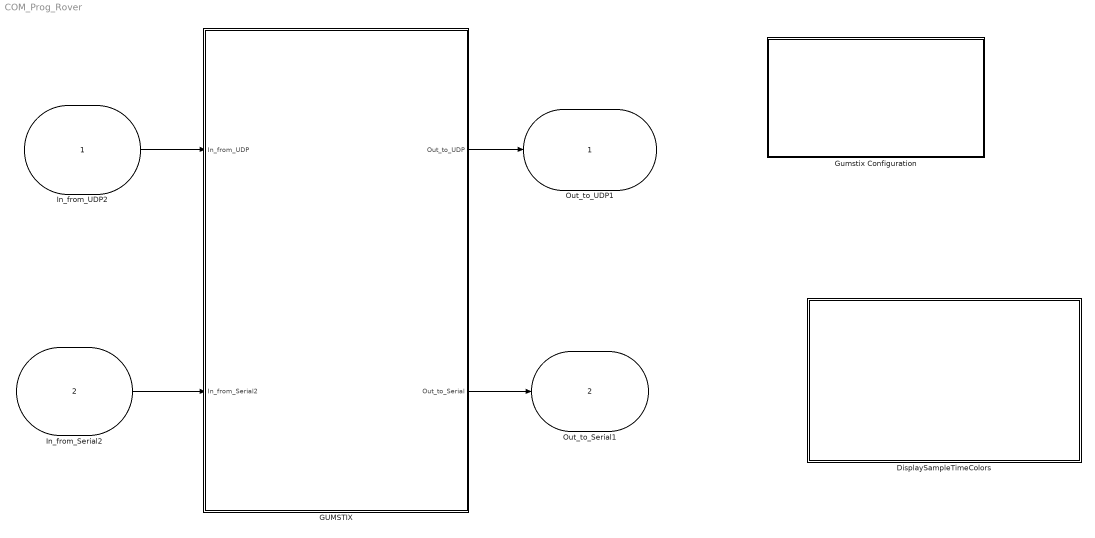
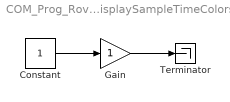
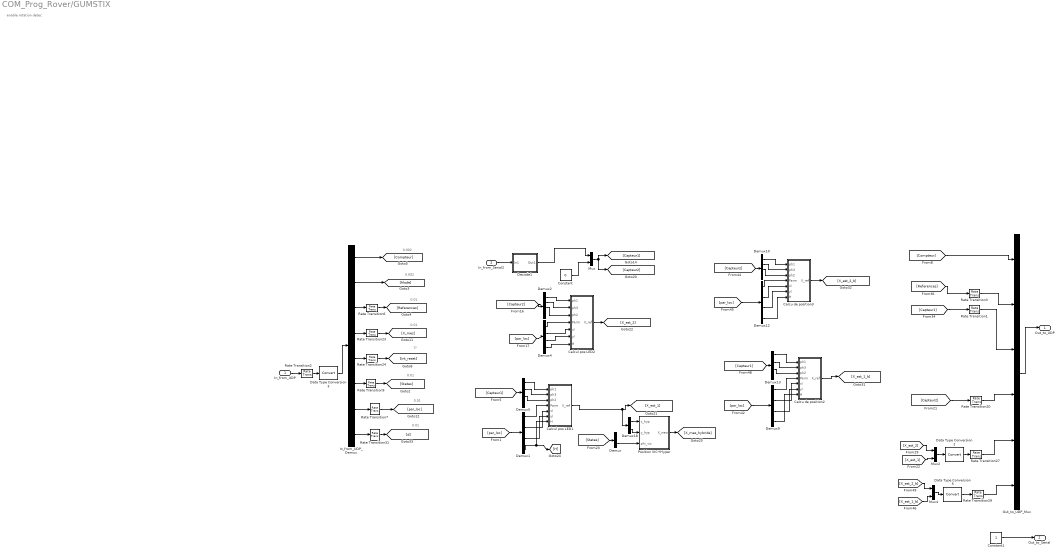
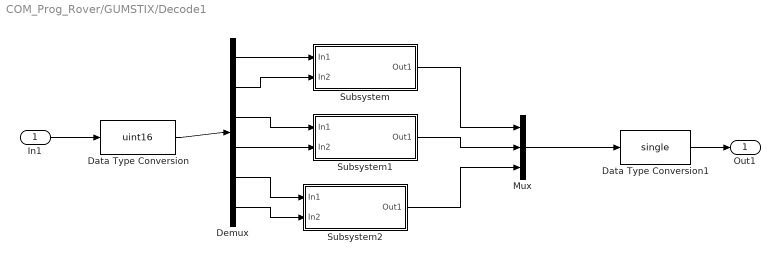
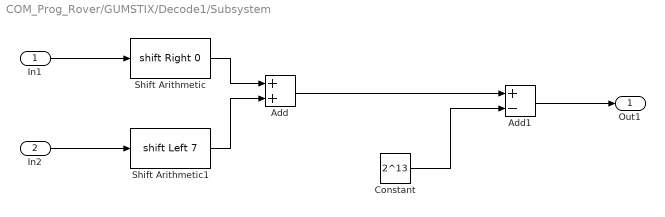
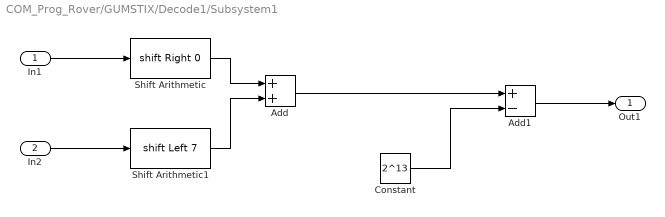
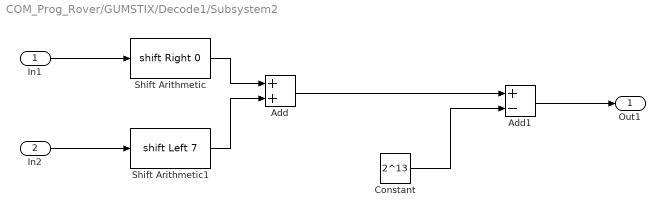
== system COM_Prog_Rover/Gumstix Configuration ==

== matlab function GUMSTIX/Calcul pos LED2 ==
function X_ref = position(ph1, ph3, ph2, Parm, xl, yl, H)   %xl,yl,H qre position of LED1
trd = pi/180;
tr2 = (ph1-ph2)/(ph1+ph2);
tr1 = (((ph1+ph2)/2)-ph3)/(((ph1+ph2)/2)+ph3);
%x = H*tan(trd*(a1*tr1+b1));
%y = H*tan(trd*(a2*tr2+b2));
% x = H.*tan(trd.*(Parm(1).*tr1 + Parm(2).*tr1.^2+ Parm(3).*tr2+Parm(4) ));
% y = H.*tan(trd.*(Parm(5).*tr2 + Parm(6).*tr2.^2+Parm(7).*tr1 + Parm(8)));
x = H.*tan(trd.*(Parm(1).*tr1 + Parm(2).*tr1.^2+ Parm(3).*tr2+  Parm(4).*tr2.^2+Parm(5) ));
y = H.*tan(trd.*(Parm(6).*tr2 + Parm(7).*tr2.^2+Parm(8).*tr1 + Parm(9).*tr1.^2+Parm(10)));
X_ref = [x,y];
end

== matlab function GUMSTIX/Calcu de position2 ==
function X_ref = position(ph1, ph3, ph2, Parm, xl, yl, H)
trd = pi/180;
tr2 = (ph1-ph2)/(ph1+ph2);
tr1 = (((ph1+ph2)/2)-ph3)/(((ph1+ph2)/2)+ph3);
%x = H*tan(trd*(a1*tr1+b1));
%y = H*tan(trd*(a2*tr2+b2));
% x = H.*tan(trd.*(Parm(1).*tr1 + Parm(2).*tr1.^2+ Parm(3).*tr2+Parm(4) ));
% y = H.*tan(trd.*(Parm(5).*tr2 + Parm(6).*tr2.^2+Parm(7).*tr1 + Parm(8)));
x = H.*tan(trd.*(Parm(1).*tr1 + Parm(2).*tr1.^2+ Parm(3).*tr2+  Parm(4).*tr2.^2+Parm(5) ));
y = H.*tan(trd.*(Parm(6).*tr2 + Parm(7).*tr2.^2+Parm(8).*tr1 + Parm(9).*tr1.^2+Parm(10)));
X_ref = [x,y];
end

== matlab function GUMSTIX/Calcul pos LED1 ==
function X_ref = position(ph1, ph3, ph2, Parm, xl, yl, H)
trd = pi/180;
tr2 = (ph1-ph2)/(ph1+ph2);
tr1 = (((ph1+ph2)/2)-ph3)/(((ph1+ph2)/2)+ph3);
%x = H*tan(trd*(a1*tr1+b1));
%y = H*tan(trd*(a2*tr2+b2));
% x = H.*tan(trd.*(Parm(1).*tr1 + Parm(2).*tr1.^2+ Parm(3).*tr2+Parm(4) ));
% y = H.*tan(trd.*(Parm(5).*tr2 + Parm(6).*tr2.^2+Parm(7).*tr1 + Parm(8)));
x = H.*tan(trd.*(Parm(1).*tr1 + Parm(2).*tr1.^2+ Parm(3).*tr2+  Parm(4).*tr2.^2+Parm(5) ));
y = H.*tan(trd.*(Parm(6).*tr2 + Parm(7).*tr2.^2+Parm(8).*tr1 + Parm(9).*tr1.^2+Parm(10)));
X_ref = [x,y];
end

== matlab function GUMSTIX/Calcu de position3 ==
function X_ref = position(ph1, ph3, ph2, Parm, xl, yl, H)
trd = pi/180;
tr2 = (ph1-ph2)/(ph1+ph2);
tr1 = (((ph1+ph2)/2)-ph3)/(((ph1+ph2)/2)+ph3);
%x = H*tan(trd*(a1*tr1+b1));
%y = H*tan(trd*(a2*tr2+b2));
% x = H.*tan(trd.*(Parm(1).*tr1 + Parm(2).*tr1.^2+ Parm(3).*tr2+Parm(4) ));
% y = H.*tan(trd.*(Parm(5).*tr2 + Parm(6).*tr2.^2+Parm(7).*tr1 + Parm(8)));
x = H.*tan(trd.*(Parm(1).*tr1 + Parm(2).*tr1.^2+ Parm(3).*tr2+  Parm(4).*tr2.^2+Parm(5) ));
y = H.*tan(trd.*(Parm(6).*tr2 + Parm(7).*tr2.^2+Parm(8).*tr1 + Parm(9).*tr1.^2+Parm(10)));
X_ref = [x,y];
end

== matlab function GUMSTIX/Position VIC+Hyper ==
function X_new = position(x_hyp, y_hyp, phi_vic)
phi = phi_vic;
A = [cos(phi) -sin(phi) 0; sin(phi) cos(phi) 0; 0 0 1];
X = A*[x_hyp;y_hyp;phi_vic];
X_new = X';
end

/*
 * File: COM_Prog_Rover.c
 *
 * Code generated for Simulink model 'COM_Prog_Rover'.
 *
 * Model version                  : 1.2007
 * Simulink Coder version         : 8.1 (R2011b) 08-Jul-2011
 * TLC version                    : 8.1 (Jul  9 2011)
 * C/C++ source code generated on : Wed Mar 22 16:38:17 2017
 *
 * Target selection: ert.tlc
 * Embedded hardware selection: 32-bit Generic
 * Code generation objectives: Unspecified
 * Validation result: Not run
 */

#include "COM_Prog_Rover.h"
#include "COM_Prog_Rover_private.h"

/* Block signals (auto storage) */
BlockIO_COM_Prog_Rover COM_Prog_Rover_B;

/* Block states (auto storage) */
D_Work_COM_Prog_Rover COM_Prog_Rover_DWork;

/* External inputs (root inport signals with auto storage) */
ExternalInputs_COM_Prog_Rover COM_Prog_Rover_U;

/* External outputs (root outports fed by signals with auto storage) */
ExternalOutputs_COM_Prog_Rover COM_Prog_Rover_Y;

/* Real-time model */
RT_MODEL_COM_Prog_Rover COM_Prog_Rover_M_;
RT_MODEL_COM_Prog_Rover *const COM_Prog_Rover_M = &COM_Prog_Rover_M_;
real32_T rt_powf_snf(real32_T u0, real32_T u1)
{
  real32_T y;
  real32_T tmp;
  real32_T tmp_0;
  if (rtIsNaNF(u0) || rtIsNaNF(u1)) {
    y = (rtNaNF);
  } else {
    tmp = (real32_T)fabs(u0);
    tmp_0 = (real32_T)fabs(u1);
    if (rtIsInfF(u1)) {
      if (tmp == 1.0F) {
        y = (rtNaNF);
      } else if (tmp > 1.0F) {
        if (u1 > 0.0F) {
          y = (rtInfF);
        } else {
          y = 0.0F;
        }
      } else if (u1 > 0.0F) {
        y = 0.0F;
      } else {
        y = (rtInfF);
      }
    } else if (tmp_0 == 0.0F) {
      y = 1.0F;
    } else if (tmp_0 == 1.0F) {
      if (u1 > 0.0F) {
        y = u0;
      } else {
        y = 1.0F / u0;
      }
    } else if (u1 == 2.0F) {
      y = u0 * u0;
    } else if ((u1 == 0.5F) && (u0 >= 0.0F)) {
      y = (real32_T)sqrt(u0);
    } else if ((u0 < 0.0F) && (u1 > (real32_T)floor(u1))) {
      y = (rtNaNF);
    } else {
      y = (real32_T)pow(u0, u1);
    }
  }

  return y;
}

/*
 * Output and update for atomic system:
 *    '<S2>/Calcu de position2'
 *    '<S2>/Calcu de position3'
 *    '<S2>/Calcul pos LED1'
 */
void COM_Prog_R_Calcudeposition2(real32_T rtu_ph1, real32_T rtu_ph3, real32_T
  rtu_ph2, const real32_T rtu_Parm[10], real32_T rtu_H,
  rtB_Calcudeposition2_COM_Prog_R *localB)
{
  real32_T tr;
  real32_T tr_0;

  /* MATLAB Function 'GUMSTIX/Calcu de position2': '<S3>:1' */
  /* '<S3>:1:2' */
  /* '<S3>:1:3' */
  tr = (rtu_ph1 - rtu_ph2) / (rtu_ph1 + rtu_ph2);

  /* '<S3>:1:4' */
  tr_0 = ((rtu_ph1 + rtu_ph2) / 2.0F - rtu_ph3) / ((rtu_ph1 + rtu_ph2) / 2.0F +
    rtu_ph3);

  /* x = H*tan(trd*(a1*tr1+b1)); */
  /* y = H*tan(trd*(a2*tr2+b2)); */
  /*  x = H.*tan(trd.*(Parm(1).*tr1 + Parm(2).*tr1.^2+ Parm(3).*tr2+Parm(4) )); */
  /*  y = H.*tan(trd.*(Parm(5).*tr2 + Parm(6).*tr2.^2+Parm(7).*tr1 + Parm(8))); */
  /* '<S3>:1:9' */
  /* '<S3>:1:10' */
  /* '<S3>:1:11' */
  localB->X_ref[0] = (real32_T)tan(((((rtu_Parm[0] * tr_0 + rtu_Parm[1] *
    rt_powf_snf(tr_0, 2.0F)) + rtu_Parm[2] * tr) + rtu_Parm[3] * rt_powf_snf(tr,
    2.0F)) + rtu_Parm[4]) * 0.0174532924F) * rtu_H;
  localB->X_ref[1] = (real32_T)tan(((((rtu_Parm[5] * tr + rtu_Parm[6] *
    rt_powf_snf(tr, 2.0F)) + rtu_Parm[7] * tr_0) + rtu_Parm[8] * rt_powf_snf
    (tr_0, 2.0F)) + rtu_Parm[9]) * 0.0174532924F) * rtu_H;
}

/* Model step function for TID0 */
void COM_Prog_Rover_step0(void)        /* Sample time: [0.002s, 0.0s] */
{
  int32_T i;

  /* Update the flag to indicate when data transfers from
   *  Sample time: [0.002s, 0.0s] to Sample time: [0.01s, 0.0s]  */
  (COM_Prog_Rover_M->Timing.RateInteraction.TID0_1)++;
  if ((COM_Prog_Rover_M->Timing.RateInteraction.TID0_1) > 4) {
    COM_Prog_Rover_M->Timing.RateInteraction.TID0_1 = 0;
  }

  /* RateTransition: '<S2>/Rate Transition3' */
  if ((COM_Prog_Rover_M->Timing.RateInteraction.TID0_1 == 1)) {
    COM_Prog_Rover_B.RateTransition3[0] =
      COM_Prog_Rover_DWork.RateTransition3_Buffer0[0];
    COM_Prog_Rover_B.RateTransition3[1] =
      COM_Prog_Rover_DWork.RateTransition3_Buffer0[1];
    COM_Prog_Rover_B.RateTransition3[2] =
      COM_Prog_Rover_DWork.RateTransition3_Buffer0[2];

    /* RateTransition: '<S2>/Rate Transition1' */
    COM_Prog_Rover_B.RateTransition1[0] =
      COM_Prog_Rover_DWork.RateTransition1_Buffer0[0];
    COM_Prog_Rover_B.RateTransition1[1] =
      COM_Prog_Rover_DWork.RateTransition1_Buffer0[1];
    COM_Prog_Rover_B.RateTransition1[2] =
      COM_Prog_Rover_DWork.RateTransition1_Buffer0[2];
    COM_Prog_Rover_B.RateTransition1[3] =
      COM_Prog_Rover_DWork.RateTransition1_Buffer0[3];

    /* RateTransition: '<S2>/Rate Transition20' */
    COM_Prog_Rover_B.RateTransition20[0] =
      COM_Prog_Rover_DWork.RateTransition20_Buffer0[0];
    COM_Prog_Rover_B.RateTransition20[1] =
      COM_Prog_Rover_DWork.RateTransition20_Buffer0[1];
    COM_Prog_Rover_B.RateTransition20[2] =
      COM_Prog_Rover_DWork.RateTransition20_Buffer0[2];
    COM_Prog_Rover_B.RateTransition20[3] =
      COM_Prog_Rover_DWork.RateTransition20_Buffer0[3];

    /* RateTransition: '<S2>/Rate Transition27' */
    COM_Prog_Rover_B.RateTransition27[0] =
      COM_Prog_Rover_DWork.RateTransition27_Buffer0[0];
    COM_Prog_Rover_B.RateTransition27[1] =
      COM_Prog_Rover_DWork.RateTransition27_Buffer0[1];
    COM_Prog_Rover_B.RateTransition27[2] =
      COM_Prog_Rover_DWork.RateTransition27_Buffer0[2];
    COM_Prog_Rover_B.RateTransition27[3] =
      COM_Prog_Rover_DWork.RateTransition27_Buffer0[3];

    /* RateTransition: '<S2>/Rate Transition29' */
    COM_Prog_Rover_B.RateTransition29[0] =
      COM_Prog_Rover_DWork.RateTransition29_Buffer0[0];
    COM_Prog_Rover_B.RateTransition29[1] =
      COM_Prog_Rover_DWork.RateTransition29_Buffer0[1];
    COM_Prog_Rover_B.RateTransition29[2] =
      COM_Prog_Rover_DWork.RateTransition29_Buffer0[2];
    COM_Prog_Rover_B.RateTransition29[3] =
      COM_Prog_Rover_DWork.RateTransition29_Buffer0[3];
  }

  /* End of RateTransition: '<S2>/Rate Transition3' */

  /* Outport: '<Root>/Out_to_UDP1' incorporates:
   *  Inport: '<Root>/In_from_UDP2'
   */
  COM_Prog_Rover_Y.Out_to_UDP1[0] = COM_Prog_Rover_U.In_from_UDP2[0];
  COM_Prog_Rover_Y.Out_to_UDP1[1] = COM_Prog_Rover_B.RateTransition3[0];
  COM_Prog_Rover_Y.Out_to_UDP1[2] = COM_Prog_Rover_B.RateTransition3[1];
  COM_Prog_Rover_Y.Out_to_UDP1[3] = COM_Prog_Rover_B.RateTransition3[2];
  COM_Prog_Rover_Y.Out_to_UDP1[4] = COM_Prog_Rover_B.RateTransition1[0];
  COM_Prog_Rover_Y.Out_to_UDP1[5] = COM_Prog_Rover_B.RateTransition1[1];
  COM_Prog_Rover_Y.Out_to_UDP1[6] = COM_Prog_Rover_B.RateTransition1[2];
  COM_Prog_Rover_Y.Out_to_UDP1[7] = COM_Prog_Rover_B.RateTransition1[3];
  COM_Prog_Rover_Y.Out_to_UDP1[8] = COM_Prog_Rover_B.RateTransition20[0];
  COM_Prog_Rover_Y.Out_to_UDP1[9] = COM_Prog_Rover_B.RateTransition20[1];
  COM_Prog_Rover_Y.Out_to_UDP1[10] = COM_Prog_Rover_B.RateTransition20[2];
  COM_Prog_Rover_Y.Out_to_UDP1[11] = COM_Prog_Rover_B.RateTransition20[3];
  COM_Prog_Rover_Y.Out_to_UDP1[12] = COM_Prog_Rover_B.RateTransition27[0];
  COM_Prog_Rover_Y.Out_to_UDP1[13] = COM_Prog_Rover_B.RateTransition27[1];
  COM_Prog_Rover_Y.Out_to_UDP1[14] = COM_Prog_Rover_B.RateTransition27[2];
  COM_Prog_Rover_Y.Out_to_UDP1[15] = COM_Prog_Rover_B.RateTransition27[3];
  COM_Prog_Rover_Y.Out_to_UDP1[16] = COM_Prog_Rover_B.RateTransition29[0];
  COM_Prog_Rover_Y.Out_to_UDP1[17] = COM_Prog_Rover_B.RateTransition29[1];
  COM_Prog_Rover_Y.Out_to_UDP1[18] = COM_Prog_Rover_B.RateTransition29[2];
  COM_Prog_Rover_Y.Out_to_UDP1[19] = COM_Prog_Rover_B.RateTransition29[3];

  /* RateTransition: '<S2>/Rate Transition7' incorporates:
   *  Inport: '<Root>/In_from_UDP2'
   */
  if (!(COM_Prog_Rover_DWork.RateTransition7_semaphoreTaken != 0)) {
    for (i = 0; i < 13; i++) {
      COM_Prog_Rover_DWork.RateTransition7_Buffer0[i] =
        COM_Prog_Rover_U.In_from_UDP2[i + 12];
    }
  }

  /* End of RateTransition: '<S2>/Rate Transition7' */

  /* RateTransition: '<S2>/Rate Transition9' incorporates:
   *  Inport: '<Root>/In_from_UDP2'
   */
  if (!(COM_Prog_Rover_DWork.RateTransition9_semaphoreTaken != 0)) {
    COM_Prog_Rover_DWork.RateTransition9_Buffer0[0] =
      COM_Prog_Rover_U.In_from_UDP2[9];
    COM_Prog_Rover_DWork.RateTransition9_Buffer0[1] =
      COM_Prog_Rover_U.In_from_UDP2[10];
    COM_Prog_Rover_DWork.RateTransition9_Buffer0[2] =
      COM_Prog_Rover_U.In_from_UDP2[11];
  }

  /* End of RateTransition: '<S2>/Rate Transition9' */

  /* RateTransition: '<S2>/Rate Transition6' incorporates:
   *  Inport: '<Root>/In_from_UDP2'
   */
  if (!(COM_Prog_Rover_DWork.RateTransition6_semaphoreTaken != 0)) {
    COM_Prog_Rover_DWork.RateTransition6_Buffer0[0] =
      COM_Prog_Rover_U.In_from_UDP2[2];
    COM_Prog_Rover_DWork.RateTransition6_Buffer0[1] =
      COM_Prog_Rover_U.In_from_UDP2[3];
    COM_Prog_Rover_DWork.RateTransition6_Buffer0[2] =
      COM_Prog_Rover_U.In_from_UDP2[4];
  }

  /* End of RateTransition: '<S2>/Rate Transition6' */
}

/* Model step function for TID1 */
void COM_Prog_Rover_step1(void)        /* Sample time: [0.01s, 0.0s] */
{
  /* local block i/o variables */
  real32_T rtb_DataTypeConversion1[3];
  real32_T rtb_RateTransition7[13];
  real32_T tr;
  real32_T tr_0;
  uint8_T rtb_DataTypeConversion[6];
  real32_T rtb_RateTransition6[3];
  int32_T i;
  real32_T rtb_X_ref_idx;

  /* Outport: '<Root>/Out_to_Serial1' incorporates:
   *  Constant: '<S2>/Constant1'
   */
  COM_Prog_Rover_Y.Out_to_Serial1 = COM_Prog_Rover_P.Constant1_Value;

  /* DataTypeConversion: '<S7>/Data Type Conversion' incorporates:
   *  Inport: '<Root>/In_from_Serial2'
   */
  for (i = 0; i < 6; i++) {
    rtb_DataTypeConversion[i] = COM_Prog_Rover_U.In_from_Serial2[i];
  }

  /* End of DataTypeConversion: '<S7>/Data Type Conversion' */

  /* DataTypeConversion: '<S7>/Data Type Conversion1' incorporates:
   *  ArithShift: '<S10>/Shift Arithmetic'
   *  ArithShift: '<S10>/Shift Arithmetic1'
   *  ArithShift: '<S11>/Shift Arithmetic'
   *  ArithShift: '<S11>/Shift Arithmetic1'
   *  ArithShift: '<S9>/Shift Arithmetic'
   *  ArithShift: '<S9>/Shift Arithmetic1'
   *  Constant: '<S10>/Constant'
   *  Constant: '<S11>/Constant'
   *  Constant: '<S9>/Constant'
   *  Sum: '<S10>/Add'
   *  Sum: '<S10>/Add1'
   *  Sum: '<S11>/Add'
   *  Sum: '<S11>/Add1'
   *  Sum: '<S9>/Add'
   *  Sum: '<S9>/Add1'
   */
  rtb_DataTypeConversion1[0] = (real32_T)(uint16_T)((int32_T)((uint32_T)
    (rtb_DataTypeConversion[1] << 7) + (uint32_T)rtb_DataTypeConversion[0]) -
    COM_Prog_Rover_P.Constant_Value_p);
  rtb_DataTypeConversion1[1] = (real32_T)(uint16_T)((int32_T)((uint32_T)
    (rtb_DataTypeConversion[3] << 7) + (uint32_T)rtb_DataTypeConversion[2]) -
    COM_Prog_Rover_P.Constant_Value_c);
  rtb_DataTypeConversion1[2] = (real32_T)(uint16_T)((int32_T)((uint32_T)
    (rtb_DataTypeConversion[5] << 7) + (uint32_T)rtb_DataTypeConversion[4]) -
    COM_Prog_Rover_P.Constant_Value_j);

  /* RateTransition: '<S2>/Rate Transition7' */
  COM_Prog_Rover_DWork.RateTransition7_semaphoreTaken = 1;
  for (i = 0; i < 13; i++) {
    rtb_RateTransition7[i] = COM_Prog_Rover_DWork.RateTransition7_Buffer0[i];
  }

  COM_Prog_Rover_DWork.RateTransition7_semaphoreTaken = 0;

  /* End of RateTransition: '<S2>/Rate Transition7' */

  /* MATLAB Function: '<S2>/Calcu de position2' */
  COM_Prog_R_Calcudeposition2(rtb_DataTypeConversion1[0],
    rtb_DataTypeConversion1[1], rtb_DataTypeConversion1[2], rtb_RateTransition7,
    rtb_RateTransition7[12], &COM_Prog_Rover_B.sf_Calcudeposition2);

  /* MATLAB Function: '<S2>/Calcu de position3' */
  COM_Prog_R_Calcudeposition2(rtb_DataTypeConversion1[0],
    rtb_DataTypeConversion1[1], rtb_DataTypeConversion1[2], rtb_RateTransition7,
    rtb_RateTransition7[12], &COM_Prog_Rover_B.sf_Calcudeposition3);

  /* MATLAB Function: '<S2>/Calcul pos LED1' */
  COM_Prog_R_Calcudeposition2(rtb_DataTypeConversion1[0],
    rtb_DataTypeConversion1[1], rtb_DataTypeConversion1[2], rtb_RateTransition7,
    rtb_RateTransition7[12], &COM_Prog_Rover_B.sf_CalculposLED1);

  /* MATLAB Function: '<S2>/Calcul pos LED2' */
  /* MATLAB Function 'GUMSTIX/Calcul pos LED2': '<S6>:1' */
  /* xl,yl,H qre position of LED1 */
  /* '<S6>:1:2' */
  /* '<S6>:1:3' */
  tr = (rtb_DataTypeConversion1[0] - rtb_DataTypeConversion1[2]) /
    (rtb_DataTypeConversion1[0] + rtb_DataTypeConversion1[2]);

  /* '<S6>:1:4' */
  tr_0 = ((rtb_DataTypeConversion1[0] + rtb_DataTypeConversion1[2]) / 2.0F -
          rtb_DataTypeConversion1[1]) / ((rtb_DataTypeConversion1[0] +
    rtb_DataTypeConversion1[2]) / 2.0F + rtb_DataTypeConversion1[1]);

  /* x = H*tan(trd*(a1*tr1+b1)); */
  /* y = H*tan(trd*(a2*tr2+b2)); */
  /*  x = H.*tan(trd.*(Parm(1).*tr1 + Parm(2).*tr1.^2+ Parm(3).*tr2+Parm(4) )); */
  /*  y = H.*tan(trd.*(Parm(5).*tr2 + Parm(6).*tr2.^2+Parm(7).*tr1 + Parm(8))); */
  /* '<S6>:1:9' */
  /* '<S6>:1:10' */
  /* '<S6>:1:11' */
  rtb_X_ref_idx = (real32_T)tan(((((rtb_RateTransition7[0] * tr_0 +
    rtb_RateTransition7[1] * rt_powf_snf(tr_0, 2.0F)) + rtb_RateTransition7[2] *
    tr) + rtb_RateTransition7[3] * rt_powf_snf(tr, 2.0F)) + rtb_RateTransition7
    [4]) * 0.0174532924F) * rtb_RateTransition7[12];
  tr = (real32_T)tan(((((rtb_RateTransition7[5] * tr + rtb_RateTransition7[6] *
    rt_powf_snf(tr, 2.0F)) + rtb_RateTransition7[7] * tr_0) +
                       rtb_RateTransition7[8] * rt_powf_snf(tr_0, 2.0F)) +
                      rtb_RateTransition7[9]) * 0.0174532924F) *
    rtb_RateTransition7[12];

  /* RateTransition: '<S2>/Rate Transition9' */
  COM_Prog_Rover_DWork.RateTransition9_semaphoreTaken = 1;
  COM_Prog_Rover_DWork.RateTransition9_semaphoreTaken = 0;

  /* RateTransition: '<S2>/Rate Transition6' */
  /* MATLAB Function 'GUMSTIX/Position VIC+Hyper': '<S8>:1' */
  /* '<S8>:1:3' */
  /* '<S8>:1:4' */
  /* '<S8>:1:5' */
  COM_Prog_Rover_DWork.RateTransition6_semaphoreTaken = 1;
  rtb_RateTransition6[0] = COM_Prog_Rover_DWork.RateTransition6_Buffer0[0];
  rtb_RateTransition6[1] = COM_Prog_Rover_DWork.RateTransition6_Buffer0[1];
  rtb_RateTransition6[2] = COM_Prog_Rover_DWork.RateTransition6_Buffer0[2];
  COM_Prog_Rover_DWork.RateTransition6_semaphoreTaken = 0;

  /* Update for RateTransition: '<S2>/Rate Transition3' */
  COM_Prog_Rover_DWork.RateTransition3_Buffer0[0] = rtb_RateTransition6[0];
  COM_Prog_Rover_DWork.RateTransition3_Buffer0[1] = rtb_RateTransition6[1];
  COM_Prog_Rover_DWork.RateTransition3_Buffer0[2] = rtb_RateTransition6[2];

  /* Update for RateTransition: '<S2>/Rate Transition1' incorporates:
   *  Constant: '<S2>/Constant'
   */
  COM_Prog_Rover_DWork.RateTransition1_Buffer0[0] = rtb_DataTypeConversion1[0];
  COM_Prog_Rover_DWork.RateTransition1_Buffer0[1] = rtb_DataTypeConversion1[1];
  COM_Prog_Rover_DWork.RateTransition1_Buffer0[2] = rtb_DataTypeConversion1[2];
  COM_Prog_Rover_DWork.RateTransition1_Buffer0[3] =
    COM_Prog_Rover_P.Constant_Value;

  /* Update for RateTransition: '<S2>/Rate Transition20' incorporates:
   *  Constant: '<S2>/Constant'
   */
  COM_Prog_Rover_DWork.RateTransition20_Buffer0[0] = rtb_DataTypeConversion1[0];
  COM_Prog_Rover_DWork.RateTransition20_Buffer0[1] = rtb_DataTypeConversion1[1];
  COM_Prog_Rover_DWork.RateTransition20_Buffer0[2] = rtb_DataTypeConversion1[2];
  COM_Prog_Rover_DWork.RateTransition20_Buffer0[3] =
    COM_Prog_Rover_P.Constant_Value;

  /* Update for RateTransition: '<S2>/Rate Transition27' */
  COM_Prog_Rover_DWork.RateTransition27_Buffer0[0] = rtb_X_ref_idx;
  COM_Prog_Rover_DWork.RateTransition27_Buffer0[1] = tr;
  COM_Prog_Rover_DWork.RateTransition27_Buffer0[2] =
    COM_Prog_Rover_B.sf_CalculposLED1.X_ref[0];
  COM_Prog_Rover_DWork.RateTransition27_Buffer0[3] =
    COM_Prog_Rover_B.sf_CalculposLED1.X_ref[1];

  /* Update for RateTransition: '<S2>/Rate Transition29' */
  COM_Prog_Rover_DWork.RateTransition29_Buffer0[0] =
    COM_Prog_Rover_B.sf_Calcudeposition3.X_ref[0];
  COM_Prog_Rover_DWork.RateTransition29_Buffer0[1] =
    COM_Prog_Rover_B.sf_Calcudeposition3.X_ref[1];
  COM_Prog_Rover_DWork.RateTransition29_Buffer0[2] =
    COM_Prog_Rover_B.sf_Calcudeposition2.X_ref[0];
  COM_Prog_Rover_DWork.RateTransition29_Buffer0[3] =
    COM_Prog_Rover_B.sf_Calcudeposition2.X_ref[1];
}
